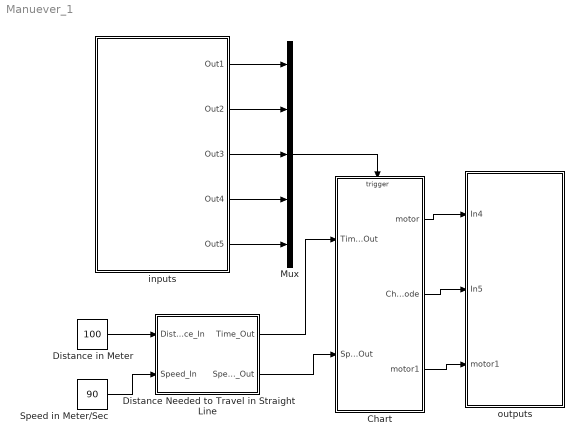
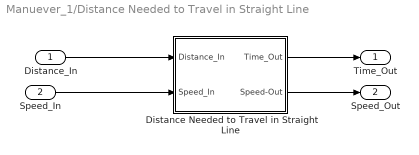
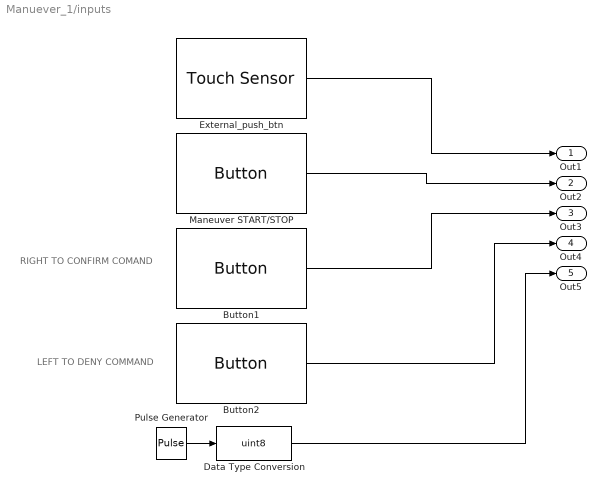
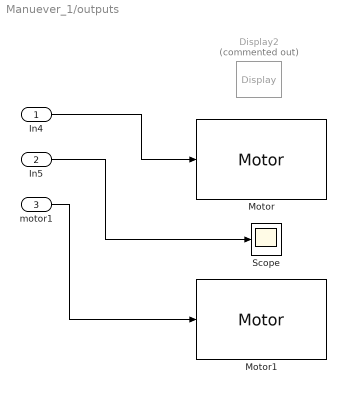
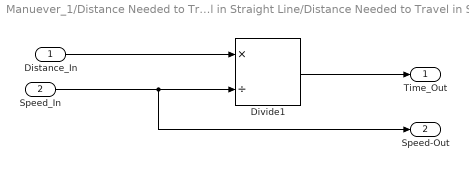
== stateflow chart Manuever_1/Chart ==
  state TurnOffConfirm
    entry:
  state Off
    entry:
    motor=0;
    motor1=0;
  state On1
    entry:
    motor =Speed_Out;
    motor1=Speed_Out;
  state TurnOnConfirm
  state EmergencySTOP
    entry:
    motor=0;
    motor1=0;
  state mid_state
  TurnOffConfirm -> (junction 129) [order 2] : confirm
  (junction 129) -> Off
  TurnOffConfirm -> On1 [order 1] : deny
  On1 -> TurnOffConfirm [order 2] : Center_btn_pressed
  (default) -> Off
  TurnOnConfirm -> Off [order 2] : deny
  TurnOnConfirm -> On1 [order 1] : confirm
  Off -> TurnOnConfirm : Center_btn_pressed
  (junction 143) -> Off
  On1 -> (junction 142) [order 3]
  (junction 113) -> On1
  On1 -> (junction 115) [order 1]
  (junction 115) -> EmergencySTOP : e_btnPressed
  EmergencySTOP -> (junction 128)
  (junction 120) -> EmergencySTOP
  mid_state -> (junction 113) [order 2] : e_btnPressed
  (junction 128) -> mid_state : e_btnPressed
  mid_state -> (junction 120) [order 1] : after(4,sec)
  (junction 142) -> (junction 143) : after(Time_Out,sec)
  data: motor output =0; ChartMode output Enum: ChartModeType; motor1 output; Time_Out input; Speed_Out input
  events: e_btnPressed input RISING_EDGE_EVENT; Center_btn_pressed input RISING_EDGE_EVENT; confirm input RISING_EDGE_EVENT; deny input RISING_EDGE_EVENT; clock input RISING_EDGE_EVENT

/*
 * Academic Teaching License -- for classroom instructional use only.  Not
 * for academic research, government, commercial, or other organizational
 * use.
 *
 * File: Manuever_1.c
 *
 * Code generated for Simulink model 'Manuever_1'.
 *
 * Model version                  : 1.37
 * Simulink Coder version         : 23.2 (R2023b) 01-Aug-2023
 * C/C++ source code generated on : Thu Jul  4 12:32:47 2024
 *
 * Target selection: ert.tlc
 * Embedded hardware selection: ARM Compatible->ARM 9
 * Code generation objectives: Unspecified
 * Validation result: Not run
 */

#include "Manuever_1.h"
#include "rtwtypes.h"
#include <math.h>
#include "rt_nonfinite.h"
#include "Manuever_1_types.h"
#include "zero_crossing_types.h"

/* Named constants for Chart: '<Root>/Chart' */
#define Manuev_event_Center_btn_pressed (1)
#define Manuever_1_event_clock         (4)
#define Manuever_1_event_confirm       (2)
#define Manuever_1_event_deny          (3)
#define Manuever_1_event_e_btnPressed  (0)

/* Block signals (default storage) */
B_Manuever_1_T Manuever_1_B;

/* Block states (default storage) */
DW_Manuever_1_T Manuever_1_DW;

/* Previous zero-crossings (trigger) states */
PrevZCX_Manuever_1_T Manuever_1_PrevZCX;

/* Real-time model */
static RT_MODEL_Manuever_1_T Manuever_1_M_;
RT_MODEL_Manuever_1_T *const Manuever_1_M = &Manuever_1_M_;

/* Forward declaration for local functions */
static void Manueve_chartstep_c3_Manuever_1(const real_T *Divide1, const int32_T
  *sfEvent);

/* Function for Chart: '<Root>/Chart' */
static void Manueve_chartstep_c3_Manuever_1(const real_T *Divide1, const int32_T
  *sfEvent)
{
  switch (Manuever_1_B.ChartMode) {
   case ChartModeType_EmergencySTOP:
    if (*sfEvent == Manuever_1_event_e_btnPressed) {
      Manuever_1_DW.temporalCounter_i1 = 0U;
      Manuever_1_B.ChartMode = ChartModeType_mid_state;
    }
    break;

   case ChartModeType_Off:
    if (*sfEvent == Manuev_event_Center_btn_pressed) {
      Manuever_1_B.ChartMode = ChartModeType_TurnOnConfirm;
    }
    break;

   case ChartModeType_On1:
    switch (*sfEvent) {
     case Manuever_1_event_e_btnPressed:
      Manuever_1_B.ChartMode = ChartModeType_EmergencySTOP;
      Manuever_1_B.motor = 0.0;
      Manuever_1_B.motor1 = 0.0;
      break;

     case Manuev_event_Center_btn_pressed:
      Manuever_1_B.ChartMode = ChartModeType_TurnOffConfirm;
      break;

     default:
      if (Manuever_1_DW.temporalCounter_i1 >= (uint32_T)ceil(*Divide1 * 10.0)) {
        Manuever_1_B.ChartMode = ChartModeType_Off;
        Manuever_1_B.motor = 0.0;
        Manuever_1_B.motor1 = 0.0;
      }
      break;
    }
    break;

   case ChartModeType_TurnOffConfirm:
    switch (*sfEvent) {
     case Manuever_1_event_deny:
      Manuever_1_DW.temporalCounter_i1 = 0U;
      Manuever_1_B.ChartMode = ChartModeType_On1;

      /* Constant: '<Root>/Speed in Meter//Sec' */
      Manuever_1_B.motor = Manuever_1_P.SpeedinMeterSec_Value;
      Manuever_1_B.motor1 = Manuever_1_P.SpeedinMeterSec_Value;
      break;

     case Manuever_1_event_confirm:
      Manuever_1_B.ChartMode = ChartModeType_Off;
      Manuever_1_B.motor = 0.0;
      Manuever_1_B.motor1 = 0.0;
      break;
    }
    break;

   case ChartModeType_TurnOnConfirm:
    switch (*sfEvent) {
     case Manuever_1_event_confirm:
      Manuever_1_DW.temporalCounter_i1 = 0U;
      Manuever_1_B.ChartMode = ChartModeType_On1;

      /* Constant: '<Root>/Speed in Meter//Sec' */
      Manuever_1_B.motor = Manuever_1_P.SpeedinMeterSec_Value;
      Manuever_1_B.motor1 = Manuever_1_P.SpeedinMeterSec_Value;
      break;

     case Manuever_1_event_deny:
      Manuever_1_B.ChartMode = ChartModeType_Off;
      Manuever_1_B.motor = 0.0;
      Manuever_1_B.motor1 = 0.0;
      break;
    }
    break;

   default:
    /* State mid_state */
    if (Manuever_1_DW.temporalCounter_i1 >= 40U) {
      Manuever_1_B.ChartMode = ChartModeType_EmergencySTOP;
      Manuever_1_B.motor = 0.0;
      Manuever_1_B.motor1 = 0.0;
    } else if (*sfEvent == Manuever_1_event_e_btnPressed) {
      Manuever_1_DW.temporalCounter_i1 = 0U;
      Manuever_1_B.ChartMode = ChartModeType_On1;

      /* Constant: '<Root>/Speed in Meter//Sec' */
      Manuever_1_B.motor = Manuever_1_P.SpeedinMeterSec_Value;
      Manuever_1_B.motor1 = Manuever_1_P.SpeedinMeterSec_Value;
    }
    break;
  }
}

/* Model step function */
void Manuever_1_step(void)
{
  real_T Divide1;
  real_T rtb_PulseGenerator;
  int32_T i;
  uint32_T elapsedTicks;
  int8_T rtb_inputevents[5];
  int8_T tmp;
  uint8_T rtb_Button1_0;
  uint8_T rtb_Button2_0;
  uint8_T rtb_DataTypeConversion;
  uint8_T rtb_External_push_btn_0;
  uint8_T rtb_ManeuverSTARTSTOP_0;
  boolean_T zcEvent[5];
  boolean_T zcEvent_0;

  /* Product: '<S5>/Divide1' incorporates:
   *  Constant: '<Root>/Distance in Meter'
   *  Constant: '<Root>/Speed in Meter//Sec'
   */
  Divide1 = Manuever_1_P.DistanceinMeter_Value /
    Manuever_1_P.SpeedinMeterSec_Value;

  /* S-Function (ev3_touch_sensor): '<S3>/External_push_btn' */
  rtb_External_push_btn_0 = getTouchSensorValue(1U);

  /* S-Function (ev3_buttons): '<S3>/Maneuver START//STOP' */
  rtb_ManeuverSTARTSTOP_0 = getButtonValue(2U);

  /* S-Function (ev3_buttons): '<S3>/Button1' */
  rtb_Button1_0 = getButtonValue(4U);

  /* S-Function (ev3_buttons): '<S3>/Button2' */
  rtb_Button2_0 = getButtonValue(5U);

  /* DiscretePulseGenerator: '<S3>/Pulse Generator' */
  rtb_PulseGenerator = (Manuever_1_DW.clockTickCounter <
                        Manuever_1_P.PulseGenerator_Duty) &&
    (Manuever_1_DW.clockTickCounter >= 0) ? Manuever_1_P.PulseGenerator_Amp :
    0.0;
  if (Manuever_1_DW.clockTickCounter >= Manuever_1_P.PulseGenerator_Period - 1.0)
  {
    Manuever_1_DW.clockTickCounter = 0;
  } else {
    Manuever_1_DW.clockTickCounter++;
  }

  /* End of DiscretePulseGenerator: '<S3>/Pulse Generator' */

  /* DataTypeConversion: '<S3>/Data Type Conversion' */
  rtb_PulseGenerator = floor(rtb_PulseGenerator);
  if (rtIsNaN(rtb_PulseGenerator) || rtIsInf(rtb_PulseGenerator)) {
    rtb_PulseGenerator = 0.0;
  } else {
    rtb_PulseGenerator = fmod(rtb_PulseGenerator, 256.0);
  }

  rtb_DataTypeConversion = (uint8_T)(rtb_PulseGenerator < 0.0 ? (int32_T)
    (uint8_T)-(int8_T)(uint8_T)-rtb_PulseGenerator : (int32_T)(uint8_T)
    rtb_PulseGenerator);

  /* End of DataTypeConversion: '<S3>/Data Type Conversion' */

  /* Chart: '<Root>/Chart' incorporates:
   *  TriggerPort: '<S1>/input events'
   */
  /* S-Function (ev3_touch_sensor): '<S3>/External_push_btn' */
  zcEvent[0] = ((rtb_External_push_btn_0 > 0) &&
                (Manuever_1_PrevZCX.Chart_Trig_ZCE[0] != POS_ZCSIG));

  /* S-Function (ev3_buttons): '<S3>/Maneuver START//STOP' */
  zcEvent[1] = ((rtb_ManeuverSTARTSTOP_0 > 0) &&
                (Manuever_1_PrevZCX.Chart_Trig_ZCE[1] != POS_ZCSIG));

  /* S-Function (ev3_buttons): '<S3>/Button1' */
  zcEvent[2] = ((rtb_Button1_0 > 0) && (Manuever_1_PrevZCX.Chart_Trig_ZCE[2] !=
    POS_ZCSIG));

  /* S-Function (ev3_buttons): '<S3>/Button2' */
  zcEvent[3] = ((rtb_Button2_0 > 0) && (Manuever_1_PrevZCX.Chart_Trig_ZCE[3] !=
    POS_ZCSIG));
  zcEvent[4] = ((rtb_DataTypeConversion > 0) &&
                (Manuever_1_PrevZCX.Chart_Trig_ZCE[4] != POS_ZCSIG));
  zcEvent_0 = false;
  for (i = 0; i < 5; i++) {
    zcEvent_0 = (zcEvent_0 || zcEvent[i]);
  }

  if (zcEvent_0) {
    for (i = 0; i < 5; i++) {
      rtb_inputevents[i] = (int8_T)zcEvent[i];
    }

    elapsedTicks = Manuever_1_M->Timing.clockTick0 - Manuever_1_DW.previousTicks;
    Manuever_1_DW.previousTicks = Manuever_1_M->Timing.clockTick0;
    Manuever_1_DW.temporalCounter_i1 += elapsedTicks;
    if (rtb_inputevents[0U] == 1) {
      i = Manuever_1_event_e_btnPressed;
      Manueve_chartstep_c3_Manuever_1(&Divide1, &i);
    }

    if (rtb_inputevents[1U] == 1) {
      i = Manuev_event_Center_btn_pressed;
      Manueve_chartstep_c3_Manuever_1(&Divide1, &i);
    }

    if (rtb_inputevents[2U] == 1) {
      i = Manuever_1_event_confirm;
      Manueve_chartstep_c3_Manuever_1(&Divide1, &i);
    }

    if (rtb_inputevents[3U] == 1) {
      i = Manuever_1_event_deny;
      Manueve_chartstep_c3_Manuever_1(&Divide1, &i);
    }

    if (rtb_inputevents[4U] == 1) {
      i = Manuever_1_event_clock;
      Manueve_chartstep_c3_Manuever_1(&Divide1, &i);
    }
  }

  /* S-Function (ev3_touch_sensor): '<S3>/External_push_btn' */
  Manuever_1_PrevZCX.Chart_Trig_ZCE[0] = (ZCSigState)(rtb_External_push_btn_0 >
    0);

  /* S-Function (ev3_buttons): '<S3>/Maneuver START//STOP' */
  Manuever_1_PrevZCX.Chart_Trig_ZCE[1] = (ZCSigState)(rtb_ManeuverSTARTSTOP_0 >
    0);

  /* S-Function (ev3_buttons): '<S3>/Button1' */
  Manuever_1_PrevZCX.Chart_Trig_ZCE[2] = (ZCSigState)(rtb_Button1_0 > 0);

  /* S-Function (ev3_buttons): '<S3>/Button2' */
  Manuever_1_PrevZCX.Chart_Trig_ZCE[3] = (ZCSigState)(rtb_Button2_0 > 0);
  Manuever_1_PrevZCX.Chart_Trig_ZCE[4] = (ZCSigState)(rtb_DataTypeConversion > 0);

  /* DataTypeConversion: '<S6>/Data Type Conversion' */
  rtb_PulseGenerator = floor(Manuever_1_B.motor);
  if (rtb_PulseGenerator < 128.0) {
    if (rtb_PulseGenerator >= -128.0) {
      /* S-Function (ev3_motor): '<S6>/Motor' */
      tmp = (int8_T)rtb_PulseGenerator;
    } else {
      /* S-Function (ev3_motor): '<S6>/Motor' */
      tmp = MIN_int8_T;
    }
  } else {
    /* S-Function (ev3_motor): '<S6>/Motor' */
    tmp = MAX_int8_T;
  }

  /* End of DataTypeConversion: '<S6>/Data Type Conversion' */

  /* S-Function (ev3_motor): '<S6>/Motor' */
  setMotor(&tmp, 1U, 2U);

  /* DataTypeConversion: '<S7>/Data Type Conversion' */
  rtb_PulseGenerator = floor(Manuever_1_B.motor1);
  if (rtb_PulseGenerator < 128.0) {
    if (rtb_PulseGenerator >= -128.0) {
      /* S-Function (ev3_motor): '<S7>/Motor' */
      tmp = (int8_T)rtb_PulseGenerator;
    } else {
      /* S-Function (ev3_motor): '<S7>/Motor' */
      tmp = MIN_int8_T;
    }
  } else {
    /* S-Function (ev3_motor): '<S7>/Motor' */
    tmp = MAX_int8_T;
  }

  /* End of DataTypeConversion: '<S7>/Data Type Conversion' */

  /* S-Function (ev3_motor): '<S7>/Motor' */
  setMotor(&tmp, 2U, 2U);

  /* Update absolute time for base rate */
  /* The "clockTick0" counts the number of times the code of this task has
   * been executed. The resolution of this integer timer is 0.1, which is the step size
   * of the task. Size of "clockTick0" ensures timer will not overflow during the
   * application lifespan selected.
   */
  Manuever_1_M->Timing.clockTick0++;
}
